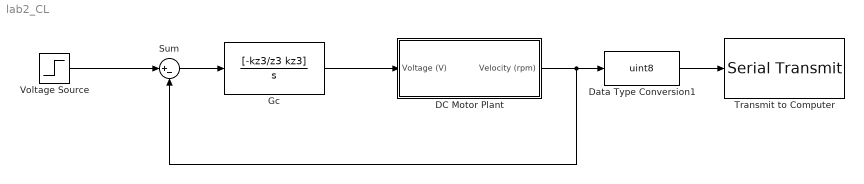
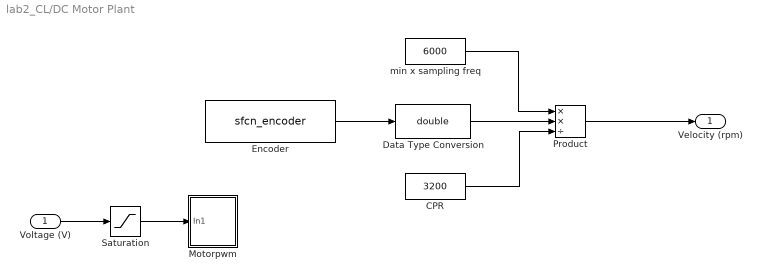
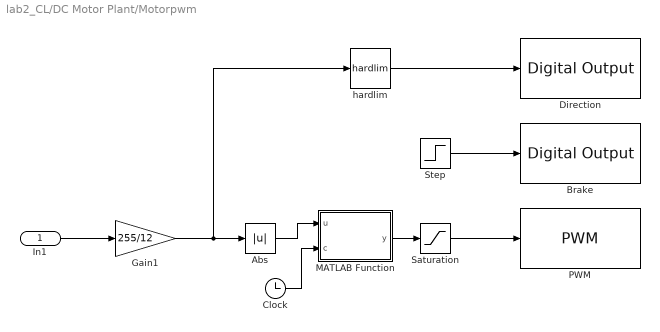
== matlab function lab2_CL/DC Motor Plant/Motorpwm/MATLAB Function ==
function y = fcn(u,c)
%#codegen
if c<10
    y = u;
else
    y=0;
end

/*
 * Academic License - for use in teaching, academic research, and meeting
 * course requirements at degree granting institutions only.  Not for
 * government, commercial, or other organizational use.
 *
 * File: lab2_CL.c
 *
 * Code generated for Simulink model 'lab2_CL'.
 *
 * Model version                  : 1.2
 * Simulink Coder version         : 8.11 (R2016b) 25-Aug-2016
 * C/C++ source code generated on : Sun Apr 14 12:14:18 2019
 *
 * Target selection: ert.tlc
 * Embedded hardware selection: Atmel->AVR
 * Code generation objectives: Unspecified
 * Validation result: Not run
 */

#include "lab2_CL.h"
#include "lab2_CL_private.h"
#define lab2_CL_PinNumber              (8.0)
#define lab2_CL_PinNumber_o            (13.0)

/* Block signals (auto storage) */
B_lab2_CL_T lab2_CL_B;

/* Continuous states */
X_lab2_CL_T lab2_CL_X;

/* Block states (auto storage) */
DW_lab2_CL_T lab2_CL_DW;

/* Real-time model */
RT_MODEL_lab2_CL_T lab2_CL_M_;
RT_MODEL_lab2_CL_T *const lab2_CL_M = &lab2_CL_M_;

/*
 * This function updates continuous states using the ODE3 fixed-step
 * solver algorithm
 */
static void rt_ertODEUpdateContinuousStates(RTWSolverInfo *si )
{
  /* Solver Matrices */
  static const real_T rt_ODE3_A[3] = {
    1.0/2.0, 3.0/4.0, 1.0
  };

  static const real_T rt_ODE3_B[3][3] = {
    { 1.0/2.0, 0.0, 0.0 },

    { 0.0, 3.0/4.0, 0.0 },

    { 2.0/9.0, 1.0/3.0, 4.0/9.0 }
  };

  time_T t = rtsiGetT(si);
  time_T tnew = rtsiGetSolverStopTime(si);
  time_T h = rtsiGetStepSize(si);
  real_T *x = rtsiGetContStates(si);
  ODE3_IntgData *id = (ODE3_IntgData *)rtsiGetSolverData(si);
  real_T *y = id->y;
  real_T *f0 = id->f[0];
  real_T *f1 = id->f[1];
  real_T *f2 = id->f[2];
  real_T hB[3];
  int_T i;
  int_T nXc = 1;
  rtsiSetSimTimeStep(si,MINOR_TIME_STEP);

  /* Save the state values at time t in y, we'll use x as ynew. */
  (void) memcpy(y, x,
                (uint_T)nXc*sizeof(real_T));

  /* Assumes that rtsiSetT and ModelOutputs are up-to-date */
  /* f0 = f(t,y) */
  rtsiSetdX(si, f0);
  lab2_CL_derivatives();

  /* f(:,2) = feval(odefile, t + hA(1), y + f*hB(:,1), args(:)(*)); */
  hB[0] = h * rt_ODE3_B[0][0];
  for (i = 0; i < nXc; i++) {
    x[i] = y[i] + (f0[i]*hB[0]);
  }

  rtsiSetT(si, t + h*rt_ODE3_A[0]);
  rtsiSetdX(si, f1);
  lab2_CL_step();
  lab2_CL_derivatives();

  /* f(:,3) = feval(odefile, t + hA(2), y + f*hB(:,2), args(:)(*)); */
  for (i = 0; i <= 1; i++) {
    hB[i] = h * rt_ODE3_B[1][i];
  }

  for (i = 0; i < nXc; i++) {
    x[i] = y[i] + (f0[i]*hB[0] + f1[i]*hB[1]);
  }

  rtsiSetT(si, t + h*rt_ODE3_A[1]);
  rtsiSetdX(si, f2);
  lab2_CL_step();
  lab2_CL_derivatives();

  /* tnew = t + hA(3);
     ynew = y + f*hB(:,3); */
  for (i = 0; i <= 2; i++) {
    hB[i] = h * rt_ODE3_B[2][i];
  }

  for (i = 0; i < nXc; i++) {
    x[i] = y[i] + (f0[i]*hB[0] + f1[i]*hB[1] + f2[i]*hB[2]);
  }

  rtsiSetT(si, tnew);
  rtsiSetSimTimeStep(si,MAJOR_TIME_STEP);
}

real_T rt_roundd_snf(real_T u)
{
  real_T y;
  if (fabs(u) < 4.503599627370496E+15) {
    if (u >= 0.5) {
      y = floor(u + 0.5);
    } else if (u > -0.5) {
      y = u * 0.0;
    } else {
      y = ceil(u - 0.5);
    }
  } else {
    y = u;
  }

  return y;
}

/* Model step function */
void lab2_CL_step(void)
{
  real_T currentTime;
  int16_T k;
  uint8_T dataIn;
  real_T rtb_Product;
  boolean_T exitg1;
  if (rtmIsMajorTimeStep(lab2_CL_M)) {
    /* set solver stop time */
    rtsiSetSolverStopTime(&lab2_CL_M->solverInfo,((lab2_CL_M->Timing.clockTick0+
      1)*lab2_CL_M->Timing.stepSize0));
  }                                    /* end MajorTimeStep */

  /* Update absolute time of base rate at minor time step */
  if (rtmIsMinorTimeStep(lab2_CL_M)) {
    lab2_CL_M->Timing.t[0] = rtsiGetT(&lab2_CL_M->solverInfo);
  }

  if (rtmIsMajorTimeStep(lab2_CL_M)) {
    /* S-Function (sfcn_encoder): '<S1>/Encoder' */
    sfcn_encoder_Outputs_wrapper( &lab2_CL_B.Encoder, &lab2_CL_DW.Encoder_DSTATE,
      &lab2_CL_P.Encoder_P1, 1, &lab2_CL_P.Encoder_P2, 1, &lab2_CL_P.Encoder_P3,
      1);

    /* Product: '<S1>/Product' incorporates:
     *  Constant: '<S1>/CPR'
     *  Constant: '<S1>/min x sampling freq'
     *  DataTypeConversion: '<S1>/Data Type Conversion'
     */
    rtb_Product = lab2_CL_P.minxsamplingfreq_Value * (real_T)lab2_CL_B.Encoder /
      lab2_CL_P.CPR_Value;

    /* Start for MATLABSystem: '<Root>/Transmit to Computer' incorporates:
     *  MATLABSystem: '<Root>/Transmit to Computer'
     */
    k = 0;
    exitg1 = false;
    while ((!exitg1) && (k < 8)) {
      if (lab2_CL_DW.obj.inputVarSize.f1[k] != 1UL) {
        for (k = 0; k < 8; k++) {
          lab2_CL_DW.obj.inputVarSize.f1[k] = 1UL;
        }

        exitg1 = true;
      } else {
        k++;
      }
    }

    /* DataTypeConversion: '<Root>/Data Type Conversion1' */
    currentTime = rt_roundd_snf(rtb_Product);
    if (rtIsNaN(currentTime) || rtIsInf(currentTime)) {
      currentTime = 0.0;
    } else {
      currentTime = fmod(currentTime, 256.0);
    }

    /* Start for MATLABSystem: '<Root>/Transmit to Computer' incorporates:
     *  DataTypeConversion: '<Root>/Data Type Conversion1'
     *  MATLABSystem: '<Root>/Transmit to Computer'
     */
    dataIn = (uint8_T)(currentTime < 0.0 ? (int16_T)(uint8_T)-(int8_T)(uint8_T)
                       -currentTime : (int16_T)(uint8_T)currentTime);
    MW_Serial_write(lab2_CL_DW.obj.port, &dataIn, 1.0,
                    lab2_CL_DW.obj.dataSizeInBytes);

    /* Step: '<Root>/Voltage Source' */
    currentTime = ((lab2_CL_M->Timing.clockTick1) * 0.01);
    if (currentTime < lab2_CL_P.VoltageSource_Time) {
      currentTime = lab2_CL_P.VoltageSource_Y0;
    } else {
      currentTime = lab2_CL_P.VoltageSource_YFinal;
    }

    /* End of Step: '<Root>/Voltage Source' */

    /* Sum: '<Root>/Sum' */
    lab2_CL_B.Sum = currentTime - rtb_Product;
  }

  /* TransferFcn: '<Root>/Gc' */
  rtb_Product = lab2_CL_P.Gc_C * lab2_CL_X.Gc_CSTATE + lab2_CL_P.Gc_D *
    lab2_CL_B.Sum;

  /* Saturate: '<S1>/Saturation' */
  if (rtb_Product > lab2_CL_P.Saturation_UpperSat) {
    rtb_Product = lab2_CL_P.Saturation_UpperSat;
  } else {
    if (rtb_Product < lab2_CL_P.Saturation_LowerSat) {
      rtb_Product = lab2_CL_P.Saturation_LowerSat;
    }
  }

  /* End of Saturate: '<S1>/Saturation' */

  /* Gain: '<S2>/Gain1' */
  rtb_Product *= lab2_CL_P.Gain1_Gain;

  /* Switch: '<S7>/Switch' incorporates:
   *  Constant: '<S7>/Constant'
   *  Constant: '<S7>/Constant1'
   */
  if (rtb_Product >= lab2_CL_P.Switch_Threshold) {
    currentTime = lab2_CL_P.Constant_Value;
  } else {
    currentTime = lab2_CL_P.Constant1_Value;
  }

  /* End of Switch: '<S7>/Switch' */

  /* DataTypeConversion: '<S4>/Data Type Conversion' */
  if (currentTime < 256.0) {
    if (currentTime >= 0.0) {
      dataIn = (uint8_T)currentTime;
    } else {
      dataIn = 0U;
    }
  } else {
    dataIn = MAX_uint8_T;
  }

  /* End of DataTypeConversion: '<S4>/Data Type Conversion' */

  /* Start for MATLABSystem: '<S4>/Digital Output' incorporates:
   *  MATLABSystem: '<S4>/Digital Output'
   */
  writeDigitalPin((uint8_T)lab2_CL_PinNumber_o, dataIn);

  /* MATLAB Function: '<S2>/MATLAB Function' incorporates:
   *  Abs: '<S2>/Abs'
   *  Clock: '<S2>/Clock'
   */
  /* MATLAB Function 'DC Motor Plant/Motorpwm/MATLAB Function': '<S5>:1' */
  /* '<S5>:1:3' if c<10 */
  if (lab2_CL_M->Timing.t[0] < 10.0) {
    /* '<S5>:1:4' y = u; */
    rtb_Product = fabs(rtb_Product);
  } else {
    /* '<S5>:1:5' else */
    /* '<S5>:1:6' y=0; */
    rtb_Product = 0.0;
  }

  /* End of MATLAB Function: '<S2>/MATLAB Function' */
  if (rtmIsMajorTimeStep(lab2_CL_M)) {
    /* Saturate: '<S2>/Saturation' */
    if (rtb_Product > lab2_CL_P.Saturation_UpperSat_c) {
      /* DataTypeConversion: '<S6>/Data Type Conversion' */
      rtb_Product = lab2_CL_P.Saturation_UpperSat_c;
    } else {
      if (rtb_Product < lab2_CL_P.Saturation_LowerSat_d) {
        /* DataTypeConversion: '<S6>/Data Type Conversion' */
        rtb_Product = lab2_CL_P.Saturation_LowerSat_d;
      }
    }

    /* End of Saturate: '<S2>/Saturation' */

    /* DataTypeConversion: '<S6>/Data Type Conversion' */
    if (rtb_Product < 256.0) {
      if (rtb_Product >= 0.0) {
        dataIn = (uint8_T)rtb_Product;
      } else {
        dataIn = 0U;
      }
    } else {
      dataIn = MAX_uint8_T;
    }

    /* S-Function (arduinoanalogoutput_sfcn): '<S6>/PWM' */
    MW_analogWrite(lab2_CL_P.PWM_pinNumber, dataIn);
  }

  /* Step: '<S2>/Step' */
  currentTime = lab2_CL_M->Timing.t[0];
  if (currentTime < lab2_CL_P.Step_Time) {
    currentTime = lab2_CL_P.Step_Y0;
  } else {
    currentTime = lab2_CL_P.Step_YFinal;
  }

  /* End of Step: '<S2>/Step' */

  /* DataTypeConversion: '<S3>/Data Type Conversion' */
  if (currentTime < 256.0) {
    if (currentTime >= 0.0) {
      dataIn = (uint8_T)currentTime;
    } else {
      dataIn = 0U;
    }
  } else {
    dataIn = MAX_uint8_T;
  }

  /* End of DataTypeConversion: '<S3>/Data Type Conversion' */

  /* Start for MATLABSystem: '<S3>/Digital Output' incorporates:
   *  MATLABSystem: '<S3>/Digital Output'
   */
  writeDigitalPin((uint8_T)lab2_CL_PinNumber, dataIn);
  if (rtmIsMajorTimeStep(lab2_CL_M)) {
    if (rtmIsMajorTimeStep(lab2_CL_M)) {
      /* S-Function "sfcn_encoder_wrapper" Block: <S1>/Encoder */
      sfcn_encoder_Update_wrapper( &lab2_CL_B.Encoder,
        &lab2_CL_DW.Encoder_DSTATE, &lab2_CL_P.Encoder_P1, 1,
        &lab2_CL_P.Encoder_P2, 1, &lab2_CL_P.Encoder_P3, 1);
    }
  }                                    /* end MajorTimeStep */

  if (rtmIsMajorTimeStep(lab2_CL_M)) {
    rt_ertODEUpdateContinuousStates(&lab2_CL_M->solverInfo);

    /* Update absolute time for base rate */
    /* The "clockTick0" counts the number of times the code of this task has
     * been executed. The absolute time is the multiplication of "clockTick0"
     * and "Timing.stepSize0". Size of "clockTick0" ensures timer will not
     * overflow during the application lifespan selected.
     */
    ++lab2_CL_M->Timing.clockTick0;
    lab2_CL_M->Timing.t[0] = rtsiGetSolverStopTime(&lab2_CL_M->solverInfo);

    {
      /* Update absolute timer for sample time: [0.01s, 0.0s] */
      /* The "clockTick1" counts the number of times the code of this task has
       * been executed. The resolution of this integer timer is 0.01, which is the step size
       * of the task. Size of "clockTick1" ensures timer will not overflow during the
       * application lifespan selected.
       */
      lab2_CL_M->Timing.clockTick1++;
    }
  }                                    /* end MajorTimeStep */
}
